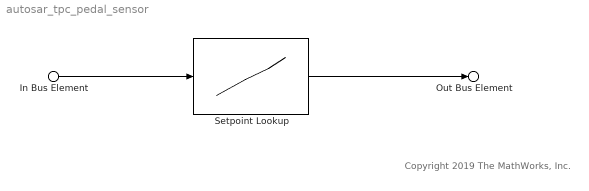
/*
 * Academic License - for use in teaching, academic research, and meeting
 * course requirements at degree granting institutions only.  Not for
 * government, commercial, or other organizational use.
 *
 * File: autosar_tpc_pedal_sensor.c
 *
 * Code generated for Simulink model 'autosar_tpc_pedal_sensor'.
 *
 * Model version                  : 5.2
 * Simulink Coder version         : 9.8 (R2022b) 13-May-2022
 * C/C++ source code generated on : Fri Nov 25 16:34:35 2022
 *
 * Target selection: autosar.tlc
 * Embedded hardware selection: Intel->x86-64 (Windows64)
 * Code generation objectives: Unspecified
 * Validation result: Not run
 */

#include "autosar_tpc_pedal_sensor.h"
#include "autosar_tpc_pedal_sensor_private.h"
#include "rtwtypes.h"

float32 look1_iu16bflftf_linlcpw(uint16 u0, const float32 bp0[], const float32
  table[], uint32 maxIndex)
{
  float32 frac;
  float32 yL_0d0;
  uint32 bpIdx;

  /* Column-major Lookup 1-D
     Search method: 'linear'
     Use previous index: 'off'
     Interpolation method: 'Linear point-slope'
     Extrapolation method: 'Clip'
     Use last breakpoint for index at or above upper limit: 'off'
     Remove protection against out-of-range input in generated code: 'off'
   */
  /* Prelookup - Index and Fraction
     Index Search method: 'linear'
     Extrapolation method: 'Clip'
     Use previous index: 'off'
     Use last breakpoint for index at or above upper limit: 'off'
     Remove protection against out-of-range input in generated code: 'off'
   */
  if (u0 < bp0[0U]) {
    bpIdx = 0U;
    frac = 0.0F;
  } else if (u0 < bp0[maxIndex]) {
    /* Linear Search */
    for (bpIdx = maxIndex >> 1U; u0 < bp0[bpIdx]; bpIdx--) {
    }

    while (u0 >= bp0[bpIdx + 1U]) {
      bpIdx++;
    }

    frac = ((float32)u0 - bp0[bpIdx]) / (bp0[bpIdx + 1U] - bp0[bpIdx]);
  } else {
    bpIdx = maxIndex - 1U;
    frac = 1.0F;
  }

  /* Column-major Interpolation 1-D
     Interpolation method: 'Linear point-slope'
     Use last breakpoint for index at or above upper limit: 'off'
     Overflow mode: 'portable wrapping'
   */
  yL_0d0 = table[bpIdx];
  return (table[bpIdx + 1U] - yL_0d0) * frac + yL_0d0;
}

/* Model step function */
void PedalSensor_Step(void)
{
  /* Outport generated from: '<Root>/Out Bus Element' incorporates:
   *  Inport generated from: '<Root>/In Bus Element'
   *  Lookup_n-D: '<Root>/Setpoint Lookup'
   */
  Rte_IWrite_PedalSensor_Step_APP_Percent_Value(look1_iu16bflftf_linlcpw
    (Rte_IRead_PedalSensor_Step_APP_HwIO_Value(),
     (Rte_CData_SetpointPercent_LkupTbl())->BP1,
     (Rte_CData_SetpointPercent_LkupTbl())->Table, 10U));
}
